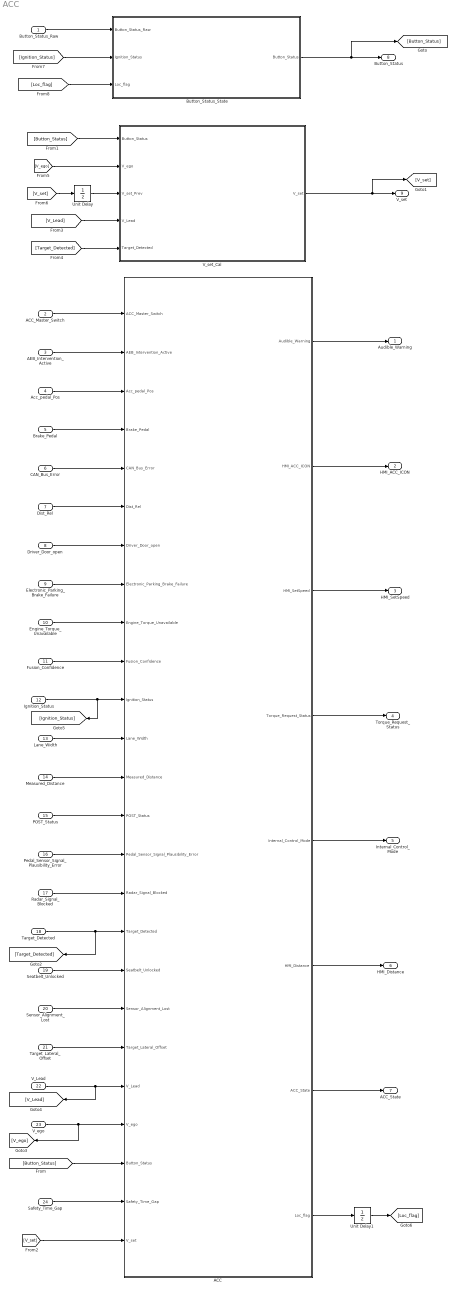
== stateflow chart ACC/Button_Status_State ==
  (default) -> (junction 29)
  (junction 29) -> (junction 4) [order 1] : [Button_Status_Raw == 1 || Loc_flag]
  (junction 29) -> (junction 8) [order 2]
  (junction 4) -> (junction 6) : {Button_Status = Set}
  (junction 6) -> (junction 8)
  (junction 8) -> (junction 11)
  (junction 11) -> (junction 13) [order 1] : [Button_Status_Raw == 2]
  (junction 11) -> (junction 17) [order 2]
  (junction 13) -> (junction 15) : {Button_Status = Cancel}
  (junction 15) -> (junction 17)
  (junction 17) -> (junction 20)
  (junction 20) -> (junction 32) [order 1] : [Button_Status_Raw == 3]
  (junction 20) -> (junction 35) [order 2]
  (junction 32) -> (junction 34) : {Button_Status = Resume}
  (junction 34) -> (junction 35)
  (junction 35) -> (junction 40)
  (junction 40) -> (junction 39) [order 1] : [(Button_Status_Raw ~= 1 && Button_Status_Raw ~=2 && Button_Status_Raw ~= 3) && (Ignition_Status ~= Ign_Run)]
  (junction 40) -> (junction 42) [order 2]
  (junction 39) -> (junction 41) : {Button_Status = None}
  (junction 41) -> (junction 42)
  data: Button_Status_Raw input; Button_Status output Enum: Dt_Enum_Button_Status_E; Ignition_Status input Enum: Dt_Enum_Ignition_Status_E; Loc_flag input

== stateflow chart ACC/V_set_Cal ==
  (default) -> (junction 2)
  (junction 2) -> (junction 3) [order 1] : [ Button_Status ==Set]
  (junction 3) -> (junction 42) [order 1] : [Target_Detected]
  (junction 2) -> (junction 4) [order 2]
  (junction 3) -> (junction 1) [order 2] : {V_set = V_ego}
  (junction 42) -> (junction 44) : {V_set = V_Lead}
  (junction 1) -> (junction 4)
  (junction 44) -> (junction 1)
  (junction 4) -> (junction 9)
  (junction 9) -> (junction 7) [order 1] : [Button_Status == Resume]
  (junction 7) -> (junction 34) [order 2]
  (junction 34) -> (junction 10) : {V_set = V_set_Prev}
  (junction 9) -> (junction 5) [order 2]
  (junction 7) -> (junction 39) [order 1] : [V_set_Prev ==0 ]
  (junction 39) -> (junction 10) : {V_set = V_ego}
  (junction 10) -> (junction 5)
  (junction 5) -> (junction 53)
  (junction 53) -> (junction 55) [order 1] : [Button_Status == Cancel]
  (junction 53) -> (junction 59) [order 2]
  (junction 55) -> (junction 57) : {V_set = V_set_Prev}
  (junction 57) -> (junction 59)
  (junction 59) -> (junction 62)
  (junction 62) -> (junction 64) [order 1] : [Button_Status == None]
  (junction 62) -> (junction 68) [order 2]
  (junction 64) -> (junction 66) : {V_set = 255}
  (junction 66) -> (junction 68)
  data: Button_Status input Enum: Dt_Enum_Button_Status_E; V_ego input uint8; V_set output uint8; V_set_Prev input uint8; V_Lead input; Target_Detected input

== stateflow chart ACC/ACC ==
  state HMI_Bars = HMI_Distance_Bars [function]
    (junction 523) -> (junction 533) : {HMI_Bars=1}
    (junction 521) -> (junction 523) [order 1] : [Dist_Rel <= 3.5 && Dist_Rel > 2.5]
    (junction 524) -> (junction 533) : {HMI_Bars=2}
    (junction 521) -> (junction 524) [order 2] : [Dist_Rel <= 2.5 && Dist_Rel > 1.5]
    (default) -> (junction 521)
    (junction 525) -> (junction 533) : {HMI_Bars=3}
    (junction 521) -> (junction 525) [order 3] : [Dist_Rel <= 1.5 && Dist_Rel > 0.75]
    (junction 521) -> (junction 526) [order 4] : [Dist_Rel <= 0.75 && Dist_Rel > 0]
    (junction 521) -> (junction 527) [order 5]
    (junction 526) -> (junction 533) : {HMI_Bars=4}
    (junction 527) -> (junction 533) : {HMI_Bars=0}
  state ACC_States [parallel]
    du:
    HMI_Bar = uint8(HMI_Distance_Bars())
    state ACC_Fault
      en:
      ACC_Status = 2;
      ACC_State = ACC_Fault;
      Torque_Request_Status = Fault;
      HMI_ACC_ICON = Red;
      Audible_Warning = Warn_Loud_Chime;
      Internal_Control_Mode = Error;
    state ACC_Off
      en:
      ACC_Status = 0;
      ACC_State = ACC_Off;
      Torque_Request_Status = Disabled;
      HMI_ACC_ICON = Off;
      HMI_SetSpeed = 0;
      Audible_Warning = Warn_None;
      Internal_Control_Mode = Standstill;
    state ACC_Override
      en:
      ACC_Status = 6;
      ACC_State = ACC_Override;
      Torque_Request_Status = Override;
      HMI_ACC_ICON = Blink_Green;
      Audible_Warning = Warn_Chime;%V>Vset for x
      Internal_Control_Mode = Passive;
    state ACC_Active
      en:
      ACC_Status = 3;
      ACC_State = ACC_Active;
      Torque_Request_Status = Longi;
      HMI_ACC_ICON = Green;
      HMI_SetSpeed = V_set;%Current_SetSpeed
      Audible_Warning = Warn_Single_Beep;
      Internal_Control_Mode = Speedctrl;
      ex:
      Loc_flag=false;
    state ACC_Active_Follow
      en:
      ACC_Status = 4;
      ACC_State =  ACC_Active_Follow;
      %Drel Cal
      Torque_Request_Status = Dis_active;
      HMI_ACC_ICON = Green;
      HMI_SetSpeed = V_set;%New_SetSpeed_Target
      Audible_Warning = Warn_None;
      Internal_Control_Mode = Distctrl;
      du:
      HMI_Distance = HMI_Bar;%1-5 Bars
    state ACC_Standby
      en:
      ACC_Status = 1;
      ACC_State = ACC_Standby;
      Torque_Request_Status = Standby;
      HMI_ACC_ICON = White;
      HMI_SetSpeed = V_set;%Prev Speed
      Audible_Warning = Warn_None;
      Internal_Control_Mode = Monitoring;
    state ACC_Stop_Hold
      en:
      ACC_Status = 5;
      ACC_State = ACC_Stop_Hold;
      Torque_Request_Status = Hold_Req;
      HMI_ACC_ICON = Green;
      Audible_Warning = Warn_None;
      Internal_Control_Mode = Standstill;
    (junction 371) -> (junction 378)
    (junction 384) -> (junction 371)
    (junction 378) -> (junction 373)
    (junction 383) -> (junction 373)
    (junction 374) -> (junction 373)
    (junction 386) -> (junction 383)
    (junction 373) -> ACC_Fault
    (junction 380) -> (junction 374)
    (default) -> ACC_Off
    ACC_Override -> (junction 375) [order 2] : [Brake_Pedal == Pedal_Pressed || ... Button_Status == Cancel]
    (junction 375) -> (junction 425)
    ACC_Off -> ACC_Fault [order 2] : [Ignition_Status == Ign_Run &&... ACC_Master_Switch == Switch_On &&...  POST_Status == Failed]
    ACC_Active_Follow -> ACC_Override [order 3] : [Acc_pedal_Pos > 15]
    ACC_Override -> ACC_Fault [order 1] : [Pedal_Sensor_Signal_Plausibility_Error == true  ]
    ACC_Fault -> ACC_Off : [Ignition_Status == Ign_Off ||... ACC_Master_Switch == Switch_Off]
    ACC_Active -> ACC_Fault [order 4] : [Radar_Signal_Blocked == true || ... Engine_Torque_Unavailable == true]
    ACC_Active -> ACC_Override [order 1] : [Acc_pedal_Pos > 15]
    ACC_Override -> (junction 556) [order 3] : [Acc_pedal_Pos < 5 ]
    ACC_Off -> ACC_Standby [order 1] : [Ignition_Status == Ign_Run &&... ACC_Master_Switch == Switch_On &&...  POST_Status == Success]
    ACC_Standby -> ACC_Off [order 3] : [Ignition_Status == Ign_Off ||... ACC_Master_Switch == Switch_Off]
    (junction 556) -> ACC_Active_Follow [order 1] : [ Target_Detected == true]
    (junction 556) -> ACC_Active [order 2] : [ Target_Detected == false]
    ACC_Active_Follow -> (junction 380) [order 5] : [ ( Fusion_Confidence > 0 && Fusion_Confidence < 40) || AEB_Intervention_Active == true]
    ACC_Standby -> (junction 386) [order 4] : [CAN_Bus_Error == true ||... Sensor_Alignment_Lost == true]
    ACC_Active -> ACC_Standby [order 3] : [Button_Status == Cancel]
    ACC_Active -> ACC_Active_Follow [order 2] : [Target_Detected == true &&...  Measured_Distance < (single(0.278*single(V_ego)*Safety_Time_Gap))]
    (junction 381) -> ACC_Standby
    (junction 408) -> (junction 381)
    ACC_Standby -> ACC_Active [order 1] : [(Button_Status == Set || ... Button_Status == Resume) && ... V_ego >= 30 && ... Brake_Pedal == Pedal_Released && ... Target_Detected == false]
    ACC_Active_Follow -> ACC_Active [order 1] : [Target_Detected == false ||... Target_Lateral_Offset > Lane_Width ||...  Measured_Distance > (single(0.278*single(V_ego)*Safety_Time_Gap)+Dist_Hyst)]/{Loc_flag=true;}
    (junction 382) -> ACC_Standby
    (junction 421) -> (junction 382)
    ACC_Standby -> ACC_Active_Follow [order 2] : [(Button_Status == Set ||... Button_Status == Resume) && ... V_ego >= 30 && ... Brake_Pedal == Pedal_Released && ... Target_Detected == true]
    ACC_Stop_Hold -> ACC_Standby [order 2] : [Driver_Door_open == true || ... Seatbelt_Unlocked == true || ... Brake_Pedal == Pedal_Pressed]
    ACC_Stop_Hold -> ACC_Active_Follow [order 1] : [ V_Lead > 5 && Dist_Rel > 3.5]
    ACC_Active_Follow -> ACC_Stop_Hold [order 2] : [V_ego < 1 && V_Lead == 0 && Dist_Rel < 3.5]
    ACC_Active_Follow -> (junction 397) [order 4] : [Brake_Pedal == Pedal_Pressed || Button_Status == Cancel]
    ACC_Stop_Hold -> (junction 384) [order 3] : [Electronic_Parking_Brake_Failure == true]
    (junction 397) -> (junction 421)
    (junction 425) -> (junction 408)
  data: HMI_Bars function_output; ACC_Master_Switch input Enum: Dt_Enum_ACC_Master_Switch_E; AEB_Intervention_Active input boolean; Acc_pedal_Pos input uint8; Brake_Pedal input Enum: Dt_Enum_Brk_Pedal_E; CAN_Bus_Error input boolean; Dist_Rel input single; Driver_Door_open input boolean; Electronic_Parking_Brake_Failure input boolean; Engine_Torque_Unavailable input boolean; Fusion_Confidence input uint8; Ignition_Status input Enum: Dt_Enum_Ignition_Status_E; Lane_Width input uint16; Measured_Distance input single; POST_Status input Enum: Dt_Enum_POST_Status_E; Pedal_Sensor_Signal_Plausibility_Error input boolean; Radar_Signal_Blocked input boolean; Target_Detected input boolean; Seatbelt_Unlocked input boolean; Sensor_Alignment_Lost input boolean; Target_Lateral_Offset input uint16; V_Lead input uint8; V_ego input uint8; Button_Status input Enum: Dt_Enum_Button_Status_E; Safety_Time_Gap input single; Audible_Warning output Enum: Dt_Enum_Audible_Warning_E; HMI_ACC_ICON output Enum: Dt_Enum_HMI_ACC_ICON_E; HMI_SetSpeed output uint8; Torque_Request_Status output Enum: Dt_Enum_Torque_Request_Status_E; Internal_Control_Mode output Enum: Dt_Enum_Internal_Control_Mode_E; HMI_Distance output uint8; ACC_Status local uint8 =0; V_set input uint8; ACC_State output Enum: Dt_Enum_ACC_State_E; HMI_Bar local uint8; Dist_Hyst constant single =5; Loc_flag output boolean

/*
 * File: ACC.c
 *
 * Code generated for Simulink model 'ACC'.
 *
 * Model version                  : 1.366
 * Simulink Coder version         : 25.2 (R2025b) 28-Jul-2025
 * C/C++ source code generated on : Sat Jul 11 12:50:24 2026
 *
 * Target selection: ert.tlc
 * Embedded hardware selection: Intel->x86-64 (Windows64)
 * Code generation objectives: Unspecified
 * Validation result: Not run
 */

#include "ACC.h"
#include "rtwtypes.h"
#include "ACC_private.h"
#include "ACC_types.h"
#include <math.h>

/* Named constants for Chart: '<Root>/ACC' */
#define ACC_Dist_Hyst                  (5.0F)
#define ACC_IN_ACC_Active              ((uint8_T)1U)
#define ACC_IN_ACC_Active_Follow       ((uint8_T)2U)
#define ACC_IN_ACC_Fault               ((uint8_T)3U)
#define ACC_IN_ACC_Off                 ((uint8_T)4U)
#define ACC_IN_ACC_Override            ((uint8_T)5U)
#define ACC_IN_ACC_Standby             ((uint8_T)6U)
#define ACC_IN_ACC_Stop_Hold           ((uint8_T)7U)

/* Block signals (default storage) */
B_ACC_T ACC_B;

/* Block states (default storage) */
DW_ACC_T ACC_DW;

/* External inputs (root inport signals with default storage) */
ExtU_ACC_T ACC_U;

/* External outputs (root outports fed by signals with default storage) */
ExtY_ACC_T ACC_Y;

/* Real-time model */
static RT_MODEL_ACC_T ACC_M_;
RT_MODEL_ACC_T *const ACC_M = &ACC_M_;

/* Forward declaration for local functions */
static real_T ACC_HMI_Distance_Bars(void);
static void ACC_ACC_Active(void);
static void ACC_ACC_Active_Follow(const uint8_T *HMI_Bar);
static void ACC_ACC_Standby(void);

/* Function for Chart: '<Root>/ACC' */
static real_T ACC_HMI_Distance_Bars(void)
{
  real_T HMI_Bars;

  /* Inport: '<Root>/Dist_Rel' */
  if ((ACC_U.Dist_Rel <= 3.5F) && (ACC_U.Dist_Rel > 2.5F)) {
    HMI_Bars = 1.0;
  } else if ((ACC_U.Dist_Rel <= 2.5F) && (ACC_U.Dist_Rel > 1.5F)) {
    HMI_Bars = 2.0;
  } else if ((ACC_U.Dist_Rel <= 1.5F) && (ACC_U.Dist_Rel > 0.75F)) {
    HMI_Bars = 3.0;
  } else if ((ACC_U.Dist_Rel <= 0.75F) && (ACC_U.Dist_Rel > 0.0F)) {
    HMI_Bars = 4.0;
  } else {
    HMI_Bars = 0.0;
  }

  /* End of Inport: '<Root>/Dist_Rel' */
  return HMI_Bars;
}

real_T rt_roundd_snf(real_T u)
{
  real_T y;
  if (fabs(u) < 4.503599627370496E+15) {
    if (u >= 0.5) {
      y = floor(u + 0.5);
    } else if (u > -0.5) {
      y = u * 0.0;
    } else {
      y = ceil(u - 0.5);
    }
  } else {
    y = u;
  }

  return y;
}

/* Function for Chart: '<Root>/ACC' */
static void ACC_ACC_Active(void)
{
  /* Outport: '<Root>/ACC_State' */
  ACC_Y.ACC_State = Dt_Enum_ACC_State_E_ACC_Active;

  /* Outport: '<Root>/Torque_Request_Status' */
  ACC_Y.Torque_Request_Status = Dt_Enum_Torque_Request_Status_E_Longi;

  /* Outport: '<Root>/HMI_ACC_ICON' */
  ACC_Y.HMI_ACC_ICON = Dt_Enum_HMI_ACC_ICON_E_Green;

  /* Outport: '<Root>/Audible_Warning' */
  ACC_Y.Audible_Warning = Dt_Enum_Audible_Warning_E_Warn_Single_Beep;

  /* Outport: '<Root>/Internal_Control_Mode' */
  ACC_Y.Internal_Control_Mode = Dt_Enum_Internal_Control_Mode_E_Speedctrl;

  /* Inport: '<Root>/Acc_pedal_Pos' incorporates:
   *  Inport: '<Root>/Engine_Torque_Unavailable'
   *  Inport: '<Root>/Measured_Distance'
   *  Inport: '<Root>/Radar_Signal_Blocked'
   *  Inport: '<Root>/Safety_Time_Gap'
   *  Inport: '<Root>/Target_Detected'
   *  Inport: '<Root>/V_ego'
   *  Outport: '<Root>/Button_Status'
   */
  if (ACC_U.Acc_pedal_Pos > 15) {
    ACC_B.Loc_flag = false;
    ACC_DW.is_ACC_States = ACC_IN_ACC_Override;

    /* Outport: '<Root>/ACC_State' */
    ACC_Y.ACC_State = Dt_Enum_ACC_State_E_ACC_Override;

    /* Outport: '<Root>/Torque_Request_Status' */
    ACC_Y.Torque_Request_Status = Dt_Enum_Torque_Request_Status_E_Override;

    /* Outport: '<Root>/HMI_ACC_ICON' */
    ACC_Y.HMI_ACC_ICON = Dt_Enum_HMI_ACC_ICON_E_Blink_Green;

    /* Outport: '<Root>/Audible_Warning' */
    ACC_Y.Audible_Warning = Dt_Enum_Audible_Warning_E_Warn_Chime;

    /* Outport: '<Root>/Internal_Control_Mode' */
    ACC_Y.Internal_Control_Mode = Dt_Enum_Internal_Control_Mode_E_Passive;
  } else if (ACC_U.Target_Detected && (ACC_U.Measured_Distance < 0.278F *
              (real32_T)ACC_U.V_ego * ACC_U.Safety_Time_Gap)) {
    ACC_B.Loc_flag = false;
    ACC_DW.is_ACC_States = ACC_IN_ACC_Active_Follow;

    /* Outport: '<Root>/ACC_State' */
    ACC_Y.ACC_State = Dt_Enum_ACC_State_E_ACC_Active_Follow;

    /* Outport: '<Root>/Torque_Request_Status' */
    ACC_Y.Torque_Request_Status = Dt_Enum_Torque_Request_Status_E_Dis_active;

    /* Outport: '<Root>/HMI_SetSpeed' incorporates:
     *  Outport: '<Root>/V_set'
     */
    ACC_Y.HMI_SetSpeed = ACC_Y.V_set;

    /* Outport: '<Root>/Audible_Warning' */
    ACC_Y.Audible_Warning = Dt_Enum_Audible_Warning_E_Warn_None;

    /* Outport: '<Root>/Internal_Control_Mode' */
    ACC_Y.Internal_Control_Mode = Dt_Enum_Internal_Control_Mode_E_Distctrl;
  } else if (ACC_Y.Button_Status == Dt_Enum_Button_Status_E_Cancel) {
    ACC_B.Loc_flag = false;
    ACC_DW.is_ACC_States = ACC_IN_ACC_Standby;

    /* Outport: '<Root>/ACC_State' */
    ACC_Y.ACC_State = Dt_Enum_ACC_State_E_ACC_Standby;

    /* Outport: '<Root>/Torque_Request_Status' */
    ACC_Y.Torque_Request_Status = Dt_Enum_Torque_Request_Status_E_Standby;

    /* Outport: '<Root>/HMI_ACC_ICON' */
    ACC_Y.HMI_ACC_ICON = Dt_Enum_HMI_ACC_ICON_E_White;

    /* Outport: '<Root>/HMI_SetSpeed' incorporates:
     *  Outport: '<Root>/V_set'
     */
    ACC_Y.HMI_SetSpeed = ACC_Y.V_set;

    /* Outport: '<Root>/Audible_Warning' */
    ACC_Y.Audible_Warning = Dt_Enum_Audible_Warning_E_Warn_None;

    /* Outport: '<Root>/Internal_Control_Mode' */
    ACC_Y.Internal_Control_Mode = Dt_Enum_Internal_Control_Mode_E_Monitoring;
  } else if (ACC_U.Radar_Signal_Blocked || ACC_U.Engine_Torque_Unavailable) {
    ACC_B.Loc_flag = false;
    ACC_DW.is_ACC_States = ACC_IN_ACC_Fault;

    /* Outport: '<Root>/ACC_State' */
    ACC_Y.ACC_State = Dt_Enum_ACC_State_E_ACC_Fault;

    /* Outport: '<Root>/Torque_Request_Status' */
    ACC_Y.Torque_Request_Status = Dt_Enum_Torque_Request_Status_E_Fault;

    /* Outport: '<Root>/HMI_ACC_ICON' */
    ACC_Y.HMI_ACC_ICON = Dt_Enum_HMI_ACC_ICON_E_Red;

    /* Outport: '<Root>/Audible_Warning' */
    ACC_Y.Audible_Warning = Dt_Enum_Audible_Warning_E_Warn_Loud_Chime;

    /* Outport: '<Root>/Internal_Control_Mode' */
    ACC_Y.Internal_Control_Mode = Dt_Enum_Internal_Control_Mode_E_Error;
  }

  /* End of Inport: '<Root>/Acc_pedal_Pos' */
}

/* Function for Chart: '<Root>/ACC' */
static void ACC_ACC_Active_Follow(const uint8_T *HMI_Bar)
{
  /* Outport: '<Root>/ACC_State' */
  ACC_Y.ACC_State = Dt_Enum_ACC_State_E_ACC_Active_Follow;

  /* Outport: '<Root>/Torque_Request_Status' */
  ACC_Y.Torque_Request_Status = Dt_Enum_Torque_Request_Status_E_Dis_active;

  /* Outport: '<Root>/HMI_ACC_ICON' */
  ACC_Y.HMI_ACC_ICON = Dt_Enum_HMI_ACC_ICON_E_Green;

  /* Outport: '<Root>/Audible_Warning' */
  ACC_Y.Audible_Warning = Dt_Enum_Audible_Warning_E_Warn_None;

  /* Outport: '<Root>/Internal_Control_Mode' */
  ACC_Y.Internal_Control_Mode = Dt_Enum_Internal_Control_Mode_E_Distctrl;

  /* Inport: '<Root>/Target_Detected' incorporates:
   *  Inport: '<Root>/AEB_Intervention_Active'
   *  Inport: '<Root>/Acc_pedal_Pos'
   *  Inport: '<Root>/Brake_Pedal'
   *  Inport: '<Root>/Dist_Rel'
   *  Inport: '<Root>/Fusion_Confidence'
   *  Inport: '<Root>/Lane_Width'
   *  Inport: '<Root>/Measured_Distance'
   *  Inport: '<Root>/Safety_Time_Gap'
   *  Inport: '<Root>/Target_Lateral_Offset'
   *  Inport: '<Root>/V_Lead'
   *  Inport: '<Root>/V_ego'
   *  Outport: '<Root>/Button_Status'
   */
  if ((!ACC_U.Target_Detected) || (ACC_U.Target_Lateral_Offset >
       ACC_U.Lane_Width) || (ACC_U.Measured_Distance > 0.278F * (real32_T)
       ACC_U.V_ego * ACC_U.Safety_Time_Gap + ACC_Dist_Hyst)) {
    ACC_B.Loc_flag = true;
    ACC_DW.is_ACC_States = ACC_IN_ACC_Active;

    /* Outport: '<Root>/ACC_State' */
    ACC_Y.ACC_State = Dt_Enum_ACC_State_E_ACC_Active;

    /* Outport: '<Root>/Torque_Request_Status' */
    ACC_Y.Torque_Request_Status = Dt_Enum_Torque_Request_Status_E_Longi;

    /* Outport: '<Root>/HMI_SetSpeed' incorporates:
     *  Outport: '<Root>/V_set'
     */
    ACC_Y.HMI_SetSpeed = ACC_Y.V_set;

    /* Outport: '<Root>/Audible_Warning' */
    ACC_Y.Audible_Warning = Dt_Enum_Audible_Warning_E_Warn_Single_Beep;

    /* Outport: '<Root>/Internal_Control_Mode' */
    ACC_Y.Internal_Control_Mode = Dt_Enum_Internal_Control_Mode_E_Speedctrl;
  } else if ((ACC_U.V_ego < 1) && (ACC_U.V_Lead == 0) && (ACC_U.Dist_Rel < 3.5F))
  {
    ACC_DW.is_ACC_States = ACC_IN_ACC_Stop_Hold;

    /* Outport: '<Root>/ACC_State' */
    ACC_Y.ACC_State = Dt_Enum_ACC_State_E_ACC_Stop_Hold;

    /* Outport: '<Root>/Torque_Request_Status' */
    ACC_Y.Torque_Request_Status = Dt_Enum_Torque_Request_Status_E_Hold_Req;

    /* Outport: '<Root>/Internal_Control_Mode' */
    ACC_Y.Internal_Control_Mode = Dt_Enum_Internal_Control_Mode_E_Standstill;
  } else if (ACC_U.Acc_pedal_Pos > 15) {
    ACC_DW.is_ACC_States = ACC_IN_ACC_Override;

    /* Outport: '<Root>/ACC_State' */
    ACC_Y.ACC_State = Dt_Enum_ACC_State_E_ACC_Override;

    /* Outport: '<Root>/Torque_Request_Status' */
    ACC_Y.Torque_Request_Status = Dt_Enum_Torque_Request_Status_E_Override;

    /* Outport: '<Root>/HMI_ACC_ICON' */
    ACC_Y.HMI_ACC_ICON = Dt_Enum_HMI_ACC_ICON_E_Blink_Green;

    /* Outport: '<Root>/Audible_Warning' */
    ACC_Y.Audible_Warning = Dt_Enum_Audible_Warning_E_Warn_Chime;

    /* Outport: '<Root>/Internal_Control_Mode' */
    ACC_Y.Internal_Control_Mode = Dt_Enum_Internal_Control_Mode_E_Passive;
  } else if ((ACC_U.Brake_Pedal == Dt_Enum_Brk_Pedal_E_Pedal_Pressed) ||
             (ACC_Y.Button_Status == Dt_Enum_Button_Status_E_Cancel)) {
    ACC_DW.is_ACC_States = ACC_IN_ACC_Standby;

    /* Outport: '<Root>/ACC_State' */
    ACC_Y.ACC_State = Dt_Enum_ACC_State_E_ACC_Standby;

    /* Outport: '<Root>/Torque_Request_Status' */
    ACC_Y.Torque_Request_Status = Dt_Enum_Torque_Request_Status_E_Standby;

    /* Outport: '<Root>/HMI_ACC_ICON' */
    ACC_Y.HMI_ACC_ICON = Dt_Enum_HMI_ACC_ICON_E_White;

    /* Outport: '<Root>/HMI_SetSpeed' incorporates:
     *  Outport: '<Root>/V_set'
     */
    ACC_Y.HMI_SetSpeed = ACC_Y.V_set;

    /* Outport: '<Root>/Internal_Control_Mode' */
    ACC_Y.Internal_Control_Mode = Dt_Enum_Internal_Control_Mode_E_Monitoring;
  } else if (((ACC_U.Fusion_Confidence > 0) && (ACC_U.Fusion_Confidence < 40)) ||
             ACC_U.AEB_Intervention_Active) {
    ACC_DW.is_ACC_States = ACC_IN_ACC_Fault;

    /* Outport: '<Root>/ACC_State' */
    ACC_Y.ACC_State = Dt_Enum_ACC_State_E_ACC_Fault;

    /* Outport: '<Root>/Torque_Request_Status' */
    ACC_Y.Torque_Request_Status = Dt_Enum_Torque_Request_Status_E_Fault;

    /* Outport: '<Root>/HMI_ACC_ICON' */
    ACC_Y.HMI_ACC_ICON = Dt_Enum_HMI_ACC_ICON_E_Red;

    /* Outport: '<Root>/Audible_Warning' */
    ACC_Y.Audible_Warning = Dt_Enum_Audible_Warning_E_Warn_Loud_Chime;

    /* Outport: '<Root>/Internal_Control_Mode' */
    ACC_Y.Internal_Control_Mode = Dt_Enum_Internal_Control_Mode_E_Error;
  } else {
    /* Outport: '<Root>/HMI_Distance' */
    ACC_Y.HMI_Distance = *HMI_Bar;
  }

  /* End of Inport: '<Root>/Target_Detected' */
}

/* Function for Chart: '<Root>/ACC' */
static void ACC_ACC_Standby(void)
{
  boolean_T tmp;

  /* Outport: '<Root>/ACC_State' */
  ACC_Y.ACC_State = Dt_Enum_ACC_State_E_ACC_Standby;

  /* Outport: '<Root>/Torque_Request_Status' */
  ACC_Y.Torque_Request_Status = Dt_Enum_Torque_Request_Status_E_Standby;

  /* Outport: '<Root>/HMI_ACC_ICON' */
  ACC_Y.HMI_ACC_ICON = Dt_Enum_HMI_ACC_ICON_E_White;

  /* Outport: '<Root>/Audible_Warning' */
  ACC_Y.Audible_Warning = Dt_Enum_Audible_Warning_E_Warn_None;

  /* Outport: '<Root>/Internal_Control_Mode' */
  ACC_Y.Internal_Control_Mode = Dt_Enum_Internal_Control_Mode_E_Monitoring;

  /* Inport: '<Root>/V_ego' incorporates:
   *  Inport: '<Root>/Brake_Pedal'
   */
  tmp = (((ACC_Y.Button_Status == Dt_Enum_Button_Status_E_Set) ||
          (ACC_Y.Button_Status == Dt_Enum_Button_Status_E_Resume)) &&
         (ACC_U.V_ego >= 30) && (ACC_U.Brake_Pedal ==
          Dt_Enum_Brk_Pedal_E_Pedal_Released));

  /* Inport: '<Root>/Target_Detected' incorporates:
   *  Inport: '<Root>/ACC_Master_Switch'
   *  Inport: '<Root>/CAN_Bus_Error'
   *  Inport: '<Root>/Ignition_Status'
   *  Inport: '<Root>/Sensor_Alignment_Lost'
   */
  if (tmp && (!ACC_U.Target_Detected)) {
    ACC_DW.is_ACC_States = ACC_IN_ACC_Active;

    /* Outport: '<Root>/ACC_State' */
    ACC_Y.ACC_State = Dt_Enum_ACC_State_E_ACC_Active;

    /* Outport: '<Root>/Torque_Request_Status' */
    ACC_Y.Torque_Request_Status = Dt_Enum_Torque_Request_Status_E_Longi;

    /* Outport: '<Root>/HMI_ACC_ICON' */
    ACC_Y.HMI_ACC_ICON = Dt_Enum_HMI_ACC_ICON_E_Green;

    /* Outport: '<Root>/HMI_SetSpeed' incorporates:
     *  Outport: '<Root>/V_set'
     */
    ACC_Y.HMI_SetSpeed = ACC_Y.V_set;

    /* Outport: '<Root>/Audible_Warning' */
    ACC_Y.Audible_Warning = Dt_Enum_Audible_Warning_E_Warn_Single_Beep;

    /* Outport: '<Root>/Internal_Control_Mode' */
    ACC_Y.Internal_Control_Mode = Dt_Enum_Internal_Control_Mode_E_Speedctrl;
  } else if (tmp && ACC_U.Target_Detected) {
    ACC_DW.is_ACC_States = ACC_IN_ACC_Active_Follow;

    /* Outport: '<Root>/ACC_State' */
    ACC_Y.ACC_State = Dt_Enum_ACC_State_E_ACC_Active_Follow;

    /* Outport: '<Root>/Torque_Request_Status' */
    ACC_Y.Torque_Request_Status = Dt_Enum_Torque_Request_Status_E_Dis_active;

    /* Outport: '<Root>/HMI_ACC_ICON' */
    ACC_Y.HMI_ACC_ICON = Dt_Enum_HMI_ACC_ICON_E_Green;

    /* Outport: '<Root>/HMI_SetSpeed' incorporates:
     *  Outport: '<Root>/V_set'
     */
    ACC_Y.HMI_SetSpeed = ACC_Y.V_set;

    /* Outport: '<Root>/Internal_Control_Mode' */
    ACC_Y.Internal_Control_Mode = Dt_Enum_Internal_Control_Mode_E_Distctrl;
  } else if ((ACC_U.Ignition_Status == Dt_Enum_Ignition_Status_E_Ign_Off) ||
             (ACC_U.ACC_Master_Switch == Dt_Enum_ACC_Master_Switch_E_Switch_Off))
  {
    ACC_DW.is_ACC_States = ACC_IN_ACC_Off;

    /* Outport: '<Root>/ACC_State' */
    ACC_Y.ACC_State = Dt_Enum_ACC_State_E_ACC_Off;

    /* Outport: '<Root>/Torque_Request_Status' */
    ACC_Y.Torque_Request_Status = Dt_Enum_Torque_Request_Status_E_Disabled;

    /* Outport: '<Root>/HMI_ACC_ICON' */
    ACC_Y.HMI_ACC_ICON = Dt_Enum_HMI_ACC_ICON_E_Off;

    /* Outport: '<Root>/HMI_SetSpeed' */
    ACC_Y.HMI_SetSpeed = 0U;

    /* Outport: '<Root>/Internal_Control_Mode' */
    ACC_Y.Internal_Control_Mode = Dt_Enum_Internal_Control_Mode_E_Standstill;
  } else if (ACC_U.CAN_Bus_Error || ACC_U.Sensor_Alignment_Lost) {
    ACC_DW.is_ACC_States = ACC_IN_ACC_Fault;

    /* Outport: '<Root>/ACC_State' */
    ACC_Y.ACC_State = Dt_Enum_ACC_State_E_ACC_Fault;

    /* Outport: '<Root>/Torque_Request_Status' */
    ACC_Y.Torque_Request_Status = Dt_Enum_Torque_Request_Status_E_Fault;

    /* Outport: '<Root>/HMI_ACC_ICON' */
    ACC_Y.HMI_ACC_ICON = Dt_Enum_HMI_ACC_ICON_E_Red;

    /* Outport: '<Root>/Audible_Warning' */
    ACC_Y.Audible_Warning = Dt_Enum_Audible_Warning_E_Warn_Loud_Chime;

    /* Outport: '<Root>/Internal_Control_Mode' */
    ACC_Y.Internal_Control_Mode = Dt_Enum_Internal_Control_Mode_E_Error;
  }

  /* End of Inport: '<Root>/Target_Detected' */
}

/* Model step function */
void ACC_step(void)
{
  real_T tmp_0;
  uint8_T tmp;
  boolean_T tmp_1;

  /* Chart: '<Root>/Button_Status_State' incorporates:
   *  Inport: '<Root>/Button_Status_Raw'
   *  UnitDelay: '<Root>/Unit Delay1'
   */
  if ((ACC_U.Button_Status_Raw == 1.0) || ACC_DW.UnitDelay1_DSTATE) {
    /* Chart: '<Root>/V_set_Cal' incorporates:
     *  Outport: '<Root>/Button_Status'
     */
    ACC_Y.Button_Status = Dt_Enum_Button_Status_E_Set;
  }

  if (ACC_U.Button_Status_Raw == 2.0) {
    /* Chart: '<Root>/V_set_Cal' incorporates:
     *  Outport: '<Root>/Button_Status'
     */
    ACC_Y.Button_Status = Dt_Enum_Button_Status_E_Cancel;
  }

  if (ACC_U.Button_Status_Raw == 3.0) {
    /* Chart: '<Root>/V_set_Cal' incorporates:
     *  Outport: '<Root>/Button_Status'
     */
    ACC_Y.Button_Status = Dt_Enum_Button_Status_E_Resume;
  }

  if ((ACC_U.Button_Status_Raw != 1.0) && (ACC_U.Button_Status_Raw != 2.0) &&
      (ACC_U.Button_Status_Raw != 3.0) && (ACC_U.Ignition_Status !=
       Dt_Enum_Ignition_Status_E_Ign_Run)) {
    /* Chart: '<Root>/V_set_Cal' incorporates:
     *  Outport: '<Root>/Button_Status'
     */
    ACC_Y.Button_Status = Dt_Enum_Button_Status_E_None;
  }

  /* End of Chart: '<Root>/Button_Status_State' */

  /* Chart: '<Root>/V_set_Cal' incorporates:
   *  Inport: '<Root>/Target_Detected'
   *  UnitDelay: '<Root>/Unit Delay'
   */
  if (ACC_Y.Button_Status == Dt_Enum_Button_Status_E_Set) {
    if (ACC_U.Target_Detected) {
      /* Outport: '<Root>/V_set' incorporates:
       *  Inport: '<Root>/V_Lead'
       */
      ACC_Y.V_set = ACC_U.V_Lead;
    } else {
      /* Outport: '<Root>/V_set' incorporates:
       *  Inport: '<Root>/V_ego'
       */
      ACC_Y.V_set = ACC_U.V_ego;
    }
  }

  if (ACC_Y.Button_Status == Dt_Enum_Button_Status_E_Resume) {
    if (ACC_DW.UnitDelay_DSTATE == 0) {
      /* Outport: '<Root>/V_set' incorporates:
       *  Inport: '<Root>/V_ego'
       */
      ACC_Y.V_set = ACC_U.V_ego;
    } else {
      /* Outport: '<Root>/V_set' */
      ACC_Y.V_set = ACC_DW.UnitDelay_DSTATE;
    }
  }

  if (ACC_Y.Button_Status == Dt_Enum_Button_Status_E_Cancel) {
    /* Outport: '<Root>/V_set' incorporates:
     *  UnitDelay: '<Root>/Unit Delay'
     */
    ACC_Y.V_set = ACC_DW.UnitDelay_DSTATE;
  }

  if (ACC_Y.Button_Status == Dt_Enum_Button_Status_E_None) {
    /* Outport: '<Root>/V_set' */
    ACC_Y.V_set = MAX_uint8_T;
  }

  /* Chart: '<Root>/ACC' incorporates:
   *  Inport: '<Root>/ACC_Master_Switch'
   *  Inport: '<Root>/Acc_pedal_Pos'
   *  Inport: '<Root>/Brake_Pedal'
   *  Inport: '<Root>/Dist_Rel'
   *  Inport: '<Root>/Driver_Door_open'
   *  Inport: '<Root>/Electronic_Parking_Brake_Failure'
   *  Inport: '<Root>/Pedal_Sensor_Signal_Plausibility_Error'
   *  Inport: '<Root>/Seatbelt_Unlocked'
   *  Inport: '<Root>/Target_Detected'
   *  Inport: '<Root>/V_Lead'
   */
  if (ACC_DW.is_active_c3_ACC == 0) {
    ACC_DW.is_active_c3_ACC = 1U;
    ACC_DW.is_ACC_States = ACC_IN_ACC_Off;

    /* Outport: '<Root>/ACC_State' */
    ACC_Y.ACC_State = Dt_Enum_ACC_State_E_ACC_Off;

    /* Outport: '<Root>/Torque_Request_Status' */
    ACC_Y.Torque_Request_Status = Dt_Enum_Torque_Request_Status_E_Disabled;

    /* Outport: '<Root>/HMI_ACC_ICON' */
    ACC_Y.HMI_ACC_ICON = Dt_Enum_HMI_ACC_ICON_E_Off;

    /* Outport: '<Root>/HMI_SetSpeed' */
    ACC_Y.HMI_SetSpeed = 0U;

    /* Outport: '<Root>/Audible_Warning' */
    ACC_Y.Audible_Warning = Dt_Enum_Audible_Warning_E_Warn_None;

    /* Outport: '<Root>/Internal_Control_Mode' */
    ACC_Y.Internal_Control_Mode = Dt_Enum_Internal_Control_Mode_E_Standstill;
  } else {
    tmp_0 = rt_roundd_snf(ACC_HMI_Distance_Bars());
    if (tmp_0 < 256.0) {
      if (tmp_0 >= 0.0) {
        tmp = (uint8_T)tmp_0;
      } else {
        tmp = 0U;
      }
    } else {
      tmp = MAX_uint8_T;
    }

    switch (ACC_DW.is_ACC_States) {
     case ACC_IN_ACC_Active:
      ACC_ACC_Active();
      break;

     case ACC_IN_ACC_Active_Follow:
      ACC_ACC_Active_Follow(&tmp);
      break;

     case ACC_IN_ACC_Fault:
      /* Outport: '<Root>/ACC_State' */
      ACC_Y.ACC_State = Dt_Enum_ACC_State_E_ACC_Fault;

      /* Outport: '<Root>/Torque_Request_Status' */
      ACC_Y.Torque_Request_Status = Dt_Enum_Torque_Request_Status_E_Fault;

      /* Outport: '<Root>/HMI_ACC_ICON' */
      ACC_Y.HMI_ACC_ICON = Dt_Enum_HMI_ACC_ICON_E_Red;

      /* Outport: '<Root>/Audible_Warning' */
      ACC_Y.Audible_Warning = Dt_Enum_Audible_Warning_E_Warn_Loud_Chime;

      /* Outport: '<Root>/Internal_Control_Mode' */
      ACC_Y.Internal_Control_Mode = Dt_Enum_Internal_Control_Mode_E_Error;
      if ((ACC_U.Ignition_Status == Dt_Enum_Ignition_Status_E_Ign_Off) ||
          (ACC_U.ACC_Master_Switch == Dt_Enum_ACC_Master_Switch_E_Switch_Off)) {
        ACC_DW.is_ACC_States = ACC_IN_ACC_Off;

        /* Outport: '<Root>/ACC_State' */
        ACC_Y.ACC_State = Dt_Enum_ACC_State_E_ACC_Off;

        /* Outport: '<Root>/Torque_Request_Status' */
        ACC_Y.Torque_Request_Status = Dt_Enum_Torque_Request_Status_E_Disabled;

        /* Outport: '<Root>/HMI_ACC_ICON' */
        ACC_Y.HMI_ACC_ICON = Dt_Enum_HMI_ACC_ICON_E_Off;

        /* Outport: '<Root>/HMI_SetSpeed' */
        ACC_Y.HMI_SetSpeed = 0U;

        /* Outport: '<Root>/Audible_Warning' */
        ACC_Y.Audible_Warning = Dt_Enum_Audible_Warning_E_Warn_None;

        /* Outport: '<Root>/Internal_Control_Mode' */
        ACC_Y.Internal_Control_Mode = Dt_Enum_Internal_Control_Mode_E_Standstill;
      }
      break;

     case ACC_IN_ACC_Off:
      /* Outport: '<Root>/ACC_State' */
      ACC_Y.ACC_State = Dt_Enum_ACC_State_E_ACC_Off;

      /* Outport: '<Root>/Torque_Request_Status' */
      ACC_Y.Torque_Request_Status = Dt_Enum_Torque_Request_Status_E_Disabled;

      /* Outport: '<Root>/HMI_ACC_ICON' */
      ACC_Y.HMI_ACC_ICON = Dt_Enum_HMI_ACC_ICON_E_Off;

      /* Outport: '<Root>/Audible_Warning' */
      ACC_Y.Audible_Warning = Dt_Enum_Audible_Warning_E_Warn_None;

      /* Outport: '<Root>/Internal_Control_Mode' */
      ACC_Y.Internal_Control_Mode = Dt_Enum_Internal_Control_Mode_E_Standstill;
      tmp_1 = ((ACC_U.Ignition_Status == Dt_Enum_Ignition_Status_E_Ign_Run) &&
               (ACC_U.ACC_Master_Switch == Dt_Enum_ACC_Master_Switch_E_Switch_On));
      if (tmp_1 && (ACC_U.POST_Status == Dt_Enum_POST_Status_E_Success)) {
        ACC_DW.is_ACC_States = ACC_IN_ACC_Standby;

        /* Outport: '<Root>/ACC_State' */
        ACC_Y.ACC_State = Dt_Enum_ACC_State_E_ACC_Standby;

        /* Outport: '<Root>/Torque_Request_Status' */
        ACC_Y.Torque_Request_Status = Dt_Enum_Torque_Request_Status_E_Standby;

        /* Outport: '<Root>/HMI_ACC_ICON' */
        ACC_Y.HMI_ACC_ICON = Dt_Enum_HMI_ACC_ICON_E_White;

        /* Outport: '<Root>/HMI_SetSpeed' incorporates:
         *  Outport: '<Root>/V_set'
         */
        ACC_Y.HMI_SetSpeed = ACC_Y.V_set;

        /* Outport: '<Root>/Internal_Control_Mode' */
        ACC_Y.Internal_Control_Mode = Dt_Enum_Internal_Control_Mode_E_Monitoring;
      } else if (tmp_1 && (ACC_U.POST_Status == Dt_Enum_POST_Status_E_Failed)) {
        ACC_DW.is_ACC_States = ACC_IN_ACC_Fault;

        /* Outport: '<Root>/ACC_State' */
        ACC_Y.ACC_State = Dt_Enum_ACC_State_E_ACC_Fault;

        /* Outport: '<Root>/Torque_Request_Status' */
        ACC_Y.Torque_Request_Status = Dt_Enum_Torque_Request_Status_E_Fault;

        /* Outport: '<Root>/HMI_ACC_ICON' */
        ACC_Y.HMI_ACC_ICON = Dt_Enum_HMI_ACC_ICON_E_Red;

        /* Outport: '<Root>/Audible_Warning' */
        ACC_Y.Audible_Warning = Dt_Enum_Audible_Warning_E_Warn_Loud_Chime;

        /* Outport: '<Root>/Internal_Control_Mode' */
        ACC_Y.Internal_Control_Mode = Dt_Enum_Internal_Control_Mode_E_Error;
      }
      break;

     case ACC_IN_ACC_Override:
      /* Outport: '<Root>/ACC_State' */
      ACC_Y.ACC_State = Dt_Enum_ACC_State_E_ACC_Override;

      /* Outport: '<Root>/Torque_Request_Status' */
      ACC_Y.Torque_Request_Status = Dt_Enum_Torque_Request_Status_E_Override;

      /* Outport: '<Root>/HMI_ACC_ICON' */
      ACC_Y.HMI_ACC_ICON = Dt_Enum_HMI_ACC_ICON_E_Blink_Green;

      /* Outport: '<Root>/Audible_Warning' */
      ACC_Y.Audible_Warning = Dt_Enum_Audible_Warning_E_Warn_Chime;

      /* Outport: '<Root>/Internal_Control_Mode' */
      ACC_Y.Internal_Control_Mode = Dt_Enum_Internal_Control_Mode_E_Passive;
      if (ACC_U.Pedal_Sensor_Signal_Plausibilit) {
        ACC_DW.is_ACC_States = ACC_IN_ACC_Fault;

        /* Outport: '<Root>/ACC_State' */
        ACC_Y.ACC_State = Dt_Enum_ACC_State_E_ACC_Fault;

        /* Outport: '<Root>/Torque_Request_Status' */
        ACC_Y.Torque_Request_Status = Dt_Enum_Torque_Request_Status_E_Fault;

        /* Outport: '<Root>/HMI_ACC_ICON' */
        ACC_Y.HMI_ACC_ICON = Dt_Enum_HMI_ACC_ICON_E_Red;

        /* Outport: '<Root>/Audible_Warning' */
        ACC_Y.Audible_Warning = Dt_Enum_Audible_Warning_E_Warn_Loud_Chime;

        /* Outport: '<Root>/Internal_Control_Mode' */
        ACC_Y.Internal_Control_Mode = Dt_Enum_Internal_Control_Mode_E_Error;
      } else if ((ACC_U.Brake_Pedal == Dt_Enum_Brk_Pedal_E_Pedal_Pressed) ||
                 (ACC_Y.Button_Status == Dt_Enum_Button_Status_E_Cancel)) {
        ACC_DW.is_ACC_States = ACC_IN_ACC_Standby;

        /* Outport: '<Root>/ACC_State' */
        ACC_Y.ACC_State = Dt_Enum_ACC_State_E_ACC_Standby;

        /* Outport: '<Root>/Torque_Request_Status' */
        ACC_Y.Torque_Request_Status = Dt_Enum_Torque_Request_Status_E_Standby;

        /* Outport: '<Root>/HMI_ACC_ICON' */
        ACC_Y.HMI_ACC_ICON = Dt_Enum_HMI_ACC_ICON_E_White;

        /* Outport: '<Root>/HMI_SetSpeed' incorporates:
         *  Outport: '<Root>/V_set'
         */
        ACC_Y.HMI_SetSpeed = ACC_Y.V_set;

        /* Outport: '<Root>/Audible_Warning' */
        ACC_Y.Audible_Warning = Dt_Enum_Audible_Warning_E_Warn_None;

        /* Outport: '<Root>/Internal_Control_Mode' */
        ACC_Y.Internal_Control_Mode = Dt_Enum_Internal_Control_Mode_E_Monitoring;
      } else if (ACC_U.Acc_pedal_Pos < 5) {
        if (ACC_U.Target_Detected) {
          ACC_DW.is_ACC_States = ACC_IN_ACC_Active_Follow;

          /* Outport: '<Root>/ACC_State' */
          ACC_Y.ACC_State = Dt_Enum_ACC_State_E_ACC_Active_Follow;

          /* Outport: '<Root>/Torque_Request_Status' */
          ACC_Y.Torque_Request_Status =
            Dt_Enum_Torque_Request_Status_E_Dis_active;

          /* Outport: '<Root>/HMI_ACC_ICON' */
          ACC_Y.HMI_ACC_ICON = Dt_Enum_HMI_ACC_ICON_E_Green;

          /* Outport: '<Root>/HMI_SetSpeed' incorporates:
           *  Outport: '<Root>/V_set'
           */
          ACC_Y.HMI_SetSpeed = ACC_Y.V_set;

          /* Outport: '<Root>/Audible_Warning' */
          ACC_Y.Audible_Warning = Dt_Enum_Audible_Warning_E_Warn_None;

          /* Outport: '<Root>/Internal_Control_Mode' */
          ACC_Y.Internal_Control_Mode = Dt_Enum_Internal_Control_Mode_E_Distctrl;
        } else {
          ACC_DW.is_ACC_States = ACC_IN_ACC_Active;

          /* Outport: '<Root>/ACC_State' */
          ACC_Y.ACC_State = Dt_Enum_ACC_State_E_ACC_Active;

          /* Outport: '<Root>/Torque_Request_Status' */
          ACC_Y.Torque_Request_Status = Dt_Enum_Torque_Request_Status_E_Longi;

          /* Outport: '<Root>/HMI_ACC_ICON' */
          ACC_Y.HMI_ACC_ICON = Dt_Enum_HMI_ACC_ICON_E_Green;

          /* Outport: '<Root>/HMI_SetSpeed' incorporates:
           *  Outport: '<Root>/V_set'
           */
          ACC_Y.HMI_SetSpeed = ACC_Y.V_set;

          /* Outport: '<Root>/Audible_Warning' */
          ACC_Y.Audible_Warning = Dt_Enum_Audible_Warning_E_Warn_Single_Beep;

          /* Outport: '<Root>/Internal_Control_Mode' */
          ACC_Y.Internal_Control_Mode =
            Dt_Enum_Internal_Control_Mode_E_Speedctrl;
        }
      }
      break;

     case ACC_IN_ACC_Standby:
      ACC_ACC_Standby();
      break;

     default:
      /* Outport: '<Root>/ACC_State' */
      /* case IN_ACC_Stop_Hold: */
      ACC_Y.ACC_State = Dt_Enum_ACC_State_E_ACC_Stop_Hold;

      /* Outport: '<Root>/Torque_Request_Status' */
      ACC_Y.Torque_Request_Status = Dt_Enum_Torque_Request_Status_E_Hold_Req;

      /* Outport: '<Root>/HMI_ACC_ICON' */
      ACC_Y.HMI_ACC_ICON = Dt_Enum_HMI_ACC_ICON_E_Green;

      /* Outport: '<Root>/Audible_Warning' */
      ACC_Y.Audible_Warning = Dt_Enum_Audible_Warning_E_Warn_None;

      /* Outport: '<Root>/Internal_Control_Mode' */
      ACC_Y.Internal_Control_Mode = Dt_Enum_Internal_Control_Mode_E_Standstill;
      if ((ACC_U.V_Lead > 5) && (ACC_U.Dist_Rel > 3.5F)) {
        ACC_DW.is_ACC_States = ACC_IN_ACC_Active_Follow;

        /* Outport: '<Root>/ACC_State' */
        ACC_Y.ACC_State = Dt_Enum_ACC_State_E_ACC_Active_Follow;

        /* Outport: '<Root>/Torque_Request_Status' */
        ACC_Y.Torque_Request_Status = Dt_Enum_Torque_Request_Status_E_Dis_active;

        /* Outport: '<Root>/HMI_SetSpeed' incorporates:
         *  Outport: '<Root>/V_set'
         */
        ACC_Y.HMI_SetSpeed = ACC_Y.V_set;

        /* Outport: '<Root>/Internal_Control_Mode' */
        ACC_Y.Internal_Control_Mode = Dt_Enum_Internal_Control_Mode_E_Distctrl;
      } else if (ACC_U.Driver_Door_open || ACC_U.Seatbelt_Unlocked ||
                 (ACC_U.Brake_Pedal == Dt_Enum_Brk_Pedal_E_Pedal_Pressed)) {
        ACC_DW.is_ACC_States = ACC_IN_ACC_Standby;

        /* Outport: '<Root>/ACC_State' */
        ACC_Y.ACC_State = Dt_Enum_ACC_State_E_ACC_Standby;

        /* Outport: '<Root>/Torque_Request_Status' */
        ACC_Y.Torque_Request_Status = Dt_Enum_Torque_Request_Status_E_Standby;

        /* Outport: '<Root>/HMI_ACC_ICON' */
        ACC_Y.HMI_ACC_ICON = Dt_Enum_HMI_ACC_ICON_E_White;

        /* Outport: '<Root>/HMI_SetSpeed' incorporates:
         *  Outport: '<Root>/V_set'
         */
        ACC_Y.HMI_SetSpeed = ACC_Y.V_set;

        /* Outport: '<Root>/Internal_Control_Mode' */
        ACC_Y.Internal_Control_Mode = Dt_Enum_Internal_Control_Mode_E_Monitoring;
      } else if (ACC_U.Electronic_Parking_Brake_Failur) {
        ACC_DW.is_ACC_States = ACC_IN_ACC_Fault;

        /* Outport: '<Root>/ACC_State' */
        ACC_Y.ACC_State = Dt_Enum_ACC_State_E_ACC_Fault;

        /* Outport: '<Root>/Torque_Request_Status' */
        ACC_Y.Torque_Request_Status = Dt_Enum_Torque_Request_Status_E_Fault;

        /* Outport: '<Root>/HMI_ACC_ICON' */
        ACC_Y.HMI_ACC_ICON = Dt_Enum_HMI_ACC_ICON_E_Red;

        /* Outport: '<Root>/Audible_Warning' */
        ACC_Y.Audible_Warning = Dt_Enum_Audible_Warning_E_Warn_Loud_Chime;

        /* Outport: '<Root>/Internal_Control_Mode' */
        ACC_Y.Internal_Control_Mode = Dt_Enum_Internal_Control_Mode_E_Error;
      }
      break;
    }
  }

  /* End of Chart: '<Root>/ACC' */

  /* Update for UnitDelay: '<Root>/Unit Delay1' */
  ACC_DW.UnitDelay1_DSTATE = ACC_B.Loc_flag;

  /* Update for UnitDelay: '<Root>/Unit Delay' incorporates:
   *  Outport: '<Root>/V_set'
   */
  ACC_DW.UnitDelay_DSTATE = ACC_Y.V_set;
}
